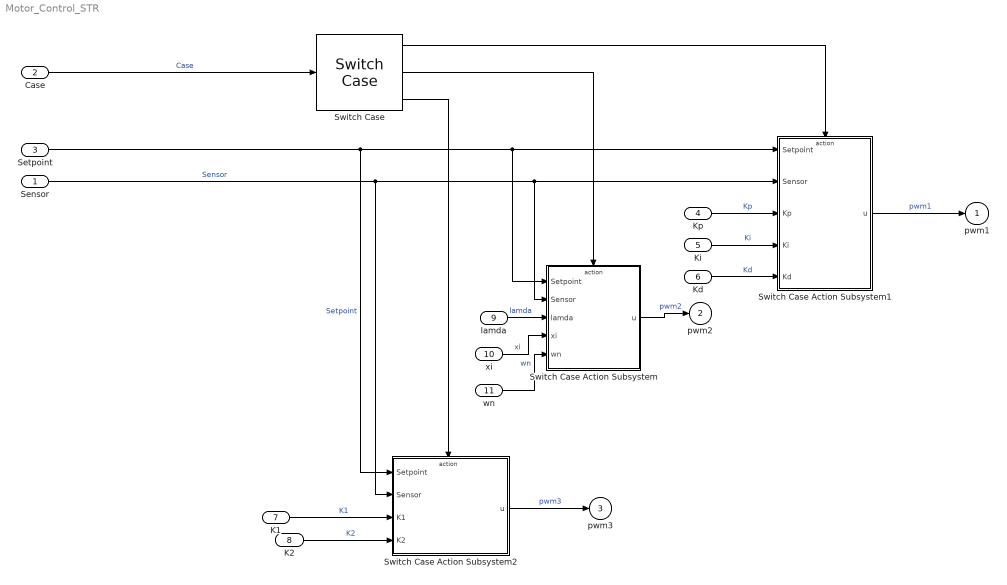
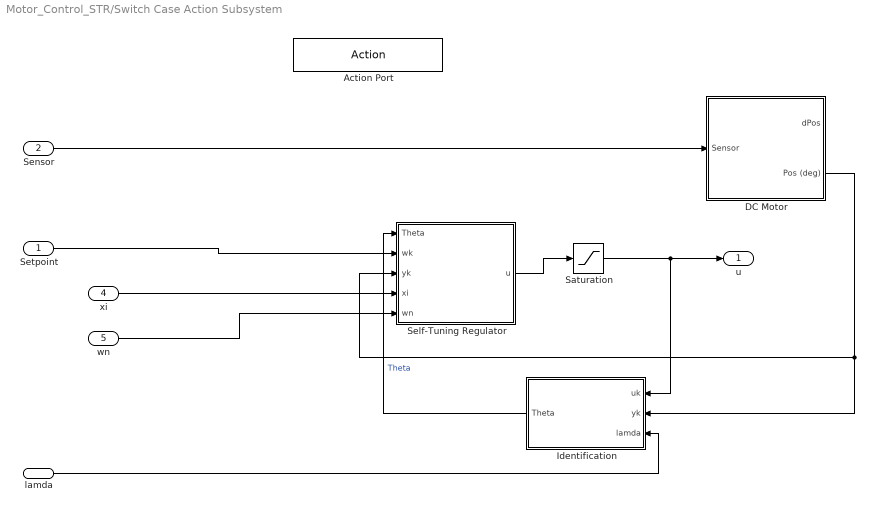
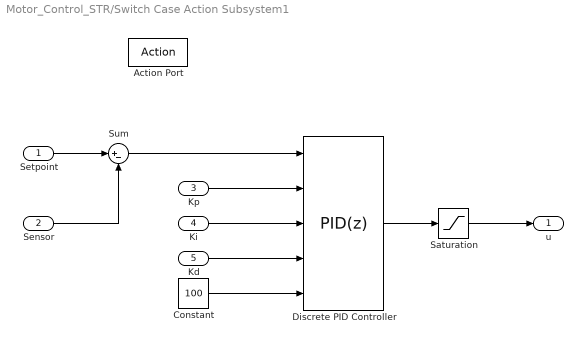
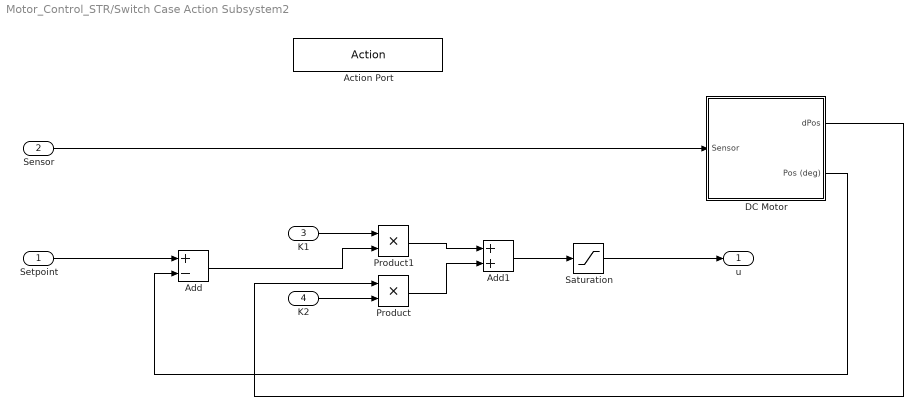
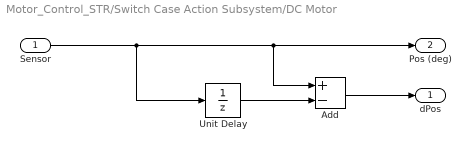
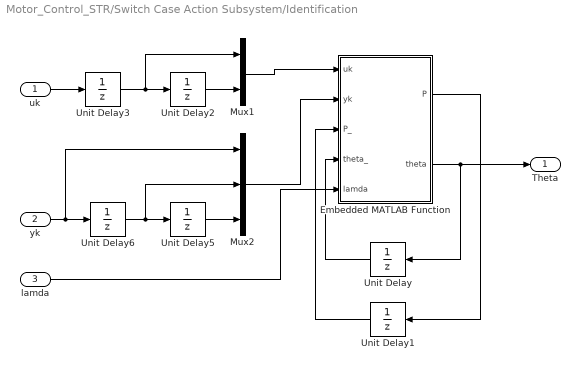
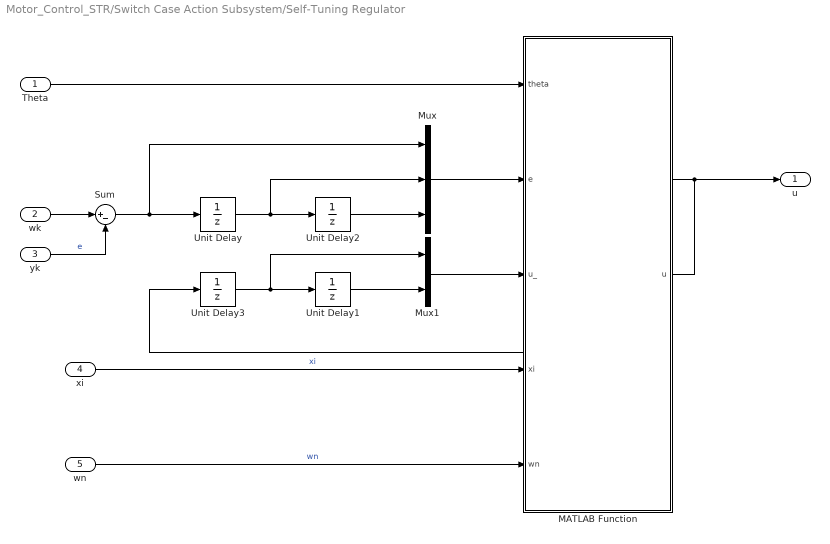
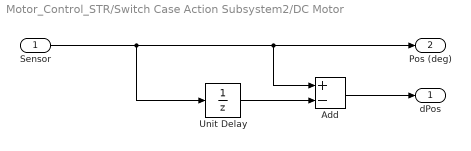
== matlab function Motor_Control_STR/Switch Case Action
Subsystem/Self-Tuning Regulator/MATLAB Function ==
function u = STR_pp1(theta,e,u_,xi,wn)
% Cai dat thoi gian lay mau va cuc mong muon
T0 = 0.005;
% xi = 0.99;
% wn = 4;
 
% Gan lai cho de su dung
a1   =  theta(1);
a2   =  theta(2);
b1   =  theta(3);
b2   =  theta(4);
 
% Sinh vien viet bo sung doan code phan dieu khien
 
if( xi<1)
    d1 = -2*exp(-xi*wn*T0)*cos(wn*T0*sqrt(1-xi^2));
else
    d1 = -2*exp(-xi*wn*T0)*cosh(wn*T0*sqrt(xi^2-1));
end
 
d2 = exp(-2*xi*wn*T0);
 
r1 = (b1+b2)*(a1*b1*b2-a2*b1^2-b2^2);
s1 = a2*((b1+b2)*(a1*b2-a2*b1)+b2*(b1*d2-b2*d1-b2));
q2 = s1/r1;
gamma = q2*b2/a2;
q1 = (a2/b2)-q2*(b1/b2-a1/a2+1);
q0 = (d1+1-a1-gamma)/b1;
 
%control law
u = q0*e(1) + q1*e(2) + q2*e(3) + (1-gamma)*u_(1) + gamma*u_(2);

== matlab function Motor_Control_STR/Switch Case Action
Subsystem/Identification/Embedded
MATLAB Function ==
function [P,theta] = Uocluong(uk,yk,P_,theta_,lamda)
%lamda = 0.99;
PHI = [-yk(2); -yk(3); uk(1); uk(2)];
e = yk(1) - PHI'*theta_;
L = P_*PHI / (lamda + PHI'*P_*PHI);
P = 1/lamda*(P_ - P_*PHI*PHI'*P_ /(lamda + PHI'*P_*PHI));
theta = theta_ + L*e;

/*
 * File: Motor_Control_STR.c
 *
 * Code generated for Simulink model 'Motor_Control_STR'.
 *
 * Model version                  : 12.25
 * Simulink Coder version         : 9.9 (R2023a) 19-Nov-2022
 * C/C++ source code generated on : Sat Dec 21 08:24:32 2024
 *
 * Target selection: ert.tlc
 * Embedded hardware selection: Intel->x86-64 (Windows64)
 * Code generation objectives: Unspecified
 * Validation result: Not run
 */

#include "Motor_Control_STR.h"
#include <math.h>
#include "rt_nonfinite.h"
#include "rtwtypes.h"
#include <string.h>

/* Exported block signals */
real_T Sensor;                         /* '<Root>/Sensor' */
real_T Case;                           /* '<Root>/Case' */
real_T Setpoint;                       /* '<Root>/Setpoint' */
real_T Kp;                             /* '<Root>/Kp' */
real_T Ki;                             /* '<Root>/Ki' */
real_T Kd;                             /* '<Root>/Kd' */
real_T K1;                             /* '<Root>/K1' */
real_T K2;                             /* '<Root>/K2' */
real_T lamda;                          /* '<Root>/lamda' */
real_T xi;                             /* '<Root>/xi' */
real_T wn;                             /* '<Root>/wn' */
real_T pwm3;                           /* '<S3>/Saturation' */
real_T pwm2;                           /* '<S1>/Saturation' */
real_T pwm1;                           /* '<S2>/Saturation' */

/* Block signals (default storage) */
B_Motor_Control_STR_T Motor_Control_STR_B;

/* Block states (default storage) */
DW_Motor_Control_STR_T Motor_Control_STR_DW;

/* Real-time model */
static RT_MODEL_Motor_Control_STR_T Motor_Control_STR_M_;
RT_MODEL_Motor_Control_STR_T *const Motor_Control_STR_M = &Motor_Control_STR_M_;

/* Model step function */
void Motor_Control_STR_step(void)
{
  real_T Theta_tmp_0[16];
  real_T tmp[16];
  real_T PHI[4];
  real_T Theta_tmp[4];
  real_T PHI_0;
  real_T Theta_tmp_1;
  real_T a;
  real_T b_gamma;
  real_T d1;
  real_T q2;
  real_T rtb_NProdOut;
  real_T rtb_Sum;
  real_T rtb_Sum_o;
  real_T rtb_UnitDelay3_d;
  real_T rtb_UnitDelay_n;
  int32_T PHI_tmp;
  int32_T i;
  int32_T tmp_0;
  int32_T tmp_1;

  /* SwitchCase: '<Root>/Switch Case' incorporates:
   *  Inport: '<Root>/Case'
   */
  PHI_0 = trunc(Case);
  if (rtIsNaN(PHI_0) || rtIsInf(PHI_0)) {
    PHI_0 = 0.0;
  } else {
    PHI_0 = fmod(PHI_0, 4.294967296E+9);
  }

  switch (PHI_0 < 0.0 ? -(int32_T)(uint32_T)-PHI_0 : (int32_T)(uint32_T)PHI_0) {
   case 1:
    /* Outputs for IfAction SubSystem: '<Root>/Switch Case Action Subsystem1' incorporates:
     *  ActionPort: '<S2>/Action Port'
     */
    /* Sum: '<S2>/Sum' incorporates:
     *  Inport: '<Root>/Sensor'
     *  Inport: '<Root>/Setpoint'
     */
    rtb_Sum_o = Setpoint - Sensor;

    /* Product: '<S44>/NProd Out' incorporates:
     *  Constant: '<S2>/Constant'
     *  DiscreteIntegrator: '<S36>/Filter'
     *  Inport: '<Root>/Kd'
     *  Product: '<S35>/DProd Out'
     *  Sum: '<S36>/SumD'
     */
    rtb_NProdOut = (rtb_Sum_o * Kd - Motor_Control_STR_DW.Filter_DSTATE) * 100.0;

    /* Sum: '<S50>/Sum' incorporates:
     *  DiscreteIntegrator: '<S41>/Integrator'
     *  Inport: '<Root>/Kp'
     *  Product: '<S46>/PProd Out'
     */
    rtb_Sum = (rtb_Sum_o * Kp + Motor_Control_STR_DW.Integrator_DSTATE) +
      rtb_NProdOut;

    /* Saturate: '<S2>/Saturation' */
    if (rtb_Sum > 100.0) {
      /* Saturate: '<S2>/Saturation' */
      pwm1 = 100.0;
    } else if (rtb_Sum < -100.0) {
      /* Saturate: '<S2>/Saturation' */
      pwm1 = -100.0;
    } else {
      /* Saturate: '<S2>/Saturation' */
      pwm1 = rtb_Sum;
    }

    /* End of Saturate: '<S2>/Saturation' */

    /* Update for DiscreteIntegrator: '<S36>/Filter' */
    Motor_Control_STR_DW.Filter_DSTATE += 0.005 * rtb_NProdOut;

    /* Update for DiscreteIntegrator: '<S41>/Integrator' incorporates:
     *  Inport: '<Root>/Ki'
     *  Product: '<S38>/IProd Out'
     */
    Motor_Control_STR_DW.Integrator_DSTATE += rtb_Sum_o * Ki * 0.005;

    /* End of Outputs for SubSystem: '<Root>/Switch Case Action Subsystem1' */
    break;

   case 2:
    /* Outputs for IfAction SubSystem: '<Root>/Switch Case Action Subsystem' incorporates:
     *  ActionPort: '<S1>/Action Port'
     */
    /* UnitDelay: '<S5>/Unit Delay3' */
    rtb_Sum_o = pwm2;

    /* UnitDelay: '<S5>/Unit Delay6' */
    rtb_NProdOut = Motor_Control_STR_DW.UnitDelay6_DSTATE;

    /* MATLAB Function: '<S5>/Embedded MATLAB Function' incorporates:
     *  Inport: '<Root>/Sensor'
     *  Inport: '<Root>/lamda'
     *  UnitDelay: '<S5>/Unit Delay'
     *  UnitDelay: '<S5>/Unit Delay1'
     *  UnitDelay: '<S5>/Unit Delay2'
     *  UnitDelay: '<S5>/Unit Delay3'
     *  UnitDelay: '<S5>/Unit Delay5'
     *  UnitDelay: '<S5>/Unit Delay6'
     */
    PHI[0] = -Motor_Control_STR_DW.UnitDelay6_DSTATE;
    PHI[1] = -Motor_Control_STR_DW.UnitDelay5_DSTATE;
    PHI[2] = pwm2;
    PHI[3] = Motor_Control_STR_DW.UnitDelay2_DSTATE;
    rtb_Sum = Sensor - (((-Motor_Control_STR_DW.UnitDelay6_DSTATE *
                          Motor_Control_STR_DW.UnitDelay_DSTATE_j[0] +
                          -Motor_Control_STR_DW.UnitDelay5_DSTATE *
                          Motor_Control_STR_DW.UnitDelay_DSTATE_j[1]) + pwm2 *
                         Motor_Control_STR_DW.UnitDelay_DSTATE_j[2]) +
                        Motor_Control_STR_DW.UnitDelay2_DSTATE *
                        Motor_Control_STR_DW.UnitDelay_DSTATE_j[3]);
    b_gamma = 0.0;
    for (i = 0; i < 4; i++) {
      PHI_tmp = i << 2;
      b_gamma += (((Motor_Control_STR_DW.UnitDelay1_DSTATE[PHI_tmp + 1] *
                    -Motor_Control_STR_DW.UnitDelay5_DSTATE +
                    Motor_Control_STR_DW.UnitDelay1_DSTATE[PHI_tmp] *
                    -Motor_Control_STR_DW.UnitDelay6_DSTATE) +
                   Motor_Control_STR_DW.UnitDelay1_DSTATE[PHI_tmp + 2] * pwm2) +
                  Motor_Control_STR_DW.UnitDelay1_DSTATE[PHI_tmp + 3] *
                  Motor_Control_STR_DW.UnitDelay2_DSTATE) * PHI[i];
    }

    PHI_0 = 0.0;
    a = 1.0 / lamda;
    for (i = 0; i < 4; i++) {
      q2 = ((Motor_Control_STR_DW.UnitDelay1_DSTATE[i + 4] *
             -Motor_Control_STR_DW.UnitDelay5_DSTATE +
             Motor_Control_STR_DW.UnitDelay1_DSTATE[i] *
             -Motor_Control_STR_DW.UnitDelay6_DSTATE) +
            Motor_Control_STR_DW.UnitDelay1_DSTATE[i + 8] * pwm2) +
        Motor_Control_STR_DW.UnitDelay1_DSTATE[i + 12] *
        Motor_Control_STR_DW.UnitDelay2_DSTATE;
      Theta_tmp[i] = q2;
      PHI_tmp = i << 2;
      PHI_0 += (((Motor_Control_STR_DW.UnitDelay1_DSTATE[PHI_tmp + 1] *
                  -Motor_Control_STR_DW.UnitDelay5_DSTATE +
                  Motor_Control_STR_DW.UnitDelay1_DSTATE[PHI_tmp] *
                  -Motor_Control_STR_DW.UnitDelay6_DSTATE) +
                 Motor_Control_STR_DW.UnitDelay1_DSTATE[PHI_tmp + 2] * pwm2) +
                Motor_Control_STR_DW.UnitDelay1_DSTATE[PHI_tmp + 3] *
                Motor_Control_STR_DW.UnitDelay2_DSTATE) * PHI[i];
      Motor_Control_STR_B.Theta[i] = q2 / (lamda + b_gamma) * rtb_Sum +
        Motor_Control_STR_DW.UnitDelay_DSTATE_j[i];
    }

    /* Sum: '<S6>/Sum' incorporates:
     *  Inport: '<Root>/Sensor'
     *  Inport: '<Root>/Setpoint'
     */
    rtb_Sum = Setpoint - Sensor;

    /* UnitDelay: '<S6>/Unit Delay' */
    rtb_UnitDelay_n = Motor_Control_STR_DW.UnitDelay_DSTATE_f;

    /* UnitDelay: '<S6>/Unit Delay3' */
    rtb_UnitDelay3_d = Motor_Control_STR_DW.UnitDelay3_DSTATE_d;

    /* MATLAB Function: '<S6>/MATLAB Function' incorporates:
     *  Inport: '<Root>/wn'
     *  Inport: '<Root>/xi'
     *  SignalConversion generated from: '<S8>/ SFunction '
     *  UnitDelay: '<S6>/Unit Delay'
     *  UnitDelay: '<S6>/Unit Delay1'
     *  UnitDelay: '<S6>/Unit Delay2'
     *  UnitDelay: '<S6>/Unit Delay3'
     */
    if (xi < 1.0) {
      d1 = exp(-xi * wn * 0.005) * -2.0 * cos(sqrt(1.0 - xi * xi) * (wn * 0.005));
    } else {
      d1 = exp(-xi * wn * 0.005) * -2.0 * cosh(sqrt(xi * xi - 1.0) * (wn * 0.005));
    }

    q2 = Motor_Control_STR_B.Theta[2] + Motor_Control_STR_B.Theta[3];
    q2 = (((exp(-2.0 * xi * wn * 0.005) * Motor_Control_STR_B.Theta[2] -
            Motor_Control_STR_B.Theta[3] * d1) - Motor_Control_STR_B.Theta[3]) *
          Motor_Control_STR_B.Theta[3] + (Motor_Control_STR_B.Theta[0] *
           Motor_Control_STR_B.Theta[3] - Motor_Control_STR_B.Theta[1] *
           Motor_Control_STR_B.Theta[2]) * q2) * Motor_Control_STR_B.Theta[1] /
      (((Motor_Control_STR_B.Theta[0] * Motor_Control_STR_B.Theta[2] *
         Motor_Control_STR_B.Theta[3] - Motor_Control_STR_B.Theta[2] *
         Motor_Control_STR_B.Theta[2] * Motor_Control_STR_B.Theta[1]) -
        Motor_Control_STR_B.Theta[3] * Motor_Control_STR_B.Theta[3]) * q2);
    b_gamma = q2 * Motor_Control_STR_B.Theta[3] / Motor_Control_STR_B.Theta[1];
    d1 = ((((Motor_Control_STR_B.Theta[1] / Motor_Control_STR_B.Theta[3] -
             ((Motor_Control_STR_B.Theta[2] / Motor_Control_STR_B.Theta[3] -
               Motor_Control_STR_B.Theta[0] / Motor_Control_STR_B.Theta[1]) +
              1.0) * q2) * Motor_Control_STR_DW.UnitDelay_DSTATE_f + (((d1 + 1.0)
              - Motor_Control_STR_B.Theta[0]) - b_gamma) /
            Motor_Control_STR_B.Theta[2] * rtb_Sum) + q2 *
           Motor_Control_STR_DW.UnitDelay2_DSTATE_m) + (1.0 - b_gamma) *
          Motor_Control_STR_DW.UnitDelay3_DSTATE_d) + b_gamma *
      Motor_Control_STR_DW.UnitDelay1_DSTATE_n;

    /* End of MATLAB Function: '<S6>/MATLAB Function' */

    /* Saturate: '<S1>/Saturation' */
    if (d1 > 100.0) {
      /* Saturate: '<S1>/Saturation' */
      pwm2 = 100.0;
    } else if (d1 < -100.0) {
      /* Saturate: '<S1>/Saturation' */
      pwm2 = -100.0;
    } else {
      /* Saturate: '<S1>/Saturation' */
      pwm2 = d1;
    }

    /* End of Saturate: '<S1>/Saturation' */

    /* Update for UnitDelay: '<S5>/Unit Delay2' */
    Motor_Control_STR_DW.UnitDelay2_DSTATE = rtb_Sum_o;

    /* Update for UnitDelay: '<S5>/Unit Delay6' incorporates:
     *  Inport: '<Root>/Sensor'
     */
    Motor_Control_STR_DW.UnitDelay6_DSTATE = Sensor;

    /* Update for UnitDelay: '<S5>/Unit Delay5' */
    Motor_Control_STR_DW.UnitDelay5_DSTATE = rtb_NProdOut;

    /* MATLAB Function: '<S5>/Embedded MATLAB Function' incorporates:
     *  Inport: '<Root>/lamda'
     *  UnitDelay: '<S5>/Unit Delay1'
     */
    q2 = Theta_tmp[0];
    rtb_Sum_o = Theta_tmp[1];
    rtb_NProdOut = Theta_tmp[2];
    Theta_tmp_1 = Theta_tmp[3];
    for (i = 0; i < 4; i++) {
      b_gamma = PHI[i];
      PHI_tmp = i << 2;
      Theta_tmp_0[PHI_tmp] = q2 * b_gamma;
      Theta_tmp_0[PHI_tmp + 1] = rtb_Sum_o * b_gamma;
      Theta_tmp_0[PHI_tmp + 2] = rtb_NProdOut * b_gamma;
      Theta_tmp_0[PHI_tmp + 3] = Theta_tmp_1 * b_gamma;
    }

    PHI_0 += lamda;
    for (i = 0; i < 4; i++) {
      q2 = Theta_tmp_0[i + 4];
      rtb_Sum_o = Theta_tmp_0[i];
      rtb_NProdOut = Theta_tmp_0[i + 8];
      Theta_tmp_1 = Theta_tmp_0[i + 12];
      for (PHI_tmp = 0; PHI_tmp < 4; PHI_tmp++) {
        tmp_0 = PHI_tmp << 2;
        tmp_1 = tmp_0 + i;
        tmp[tmp_1] = Motor_Control_STR_DW.UnitDelay1_DSTATE[tmp_1] -
          (((Motor_Control_STR_DW.UnitDelay1_DSTATE[tmp_0 + 1] * q2 +
             Motor_Control_STR_DW.UnitDelay1_DSTATE[tmp_0] * rtb_Sum_o) +
            Motor_Control_STR_DW.UnitDelay1_DSTATE[tmp_0 + 2] * rtb_NProdOut) +
           Motor_Control_STR_DW.UnitDelay1_DSTATE[tmp_0 + 3] * Theta_tmp_1) /
          PHI_0;
      }
    }

    /* Update for UnitDelay: '<S5>/Unit Delay1' incorporates:
     *  MATLAB Function: '<S5>/Embedded MATLAB Function'
     */
    for (i = 0; i < 16; i++) {
      Motor_Control_STR_DW.UnitDelay1_DSTATE[i] = a * tmp[i];
    }

    /* End of Update for UnitDelay: '<S5>/Unit Delay1' */

    /* Update for UnitDelay: '<S5>/Unit Delay' */
    Motor_Control_STR_DW.UnitDelay_DSTATE_j[0] = Motor_Control_STR_B.Theta[0];
    Motor_Control_STR_DW.UnitDelay_DSTATE_j[1] = Motor_Control_STR_B.Theta[1];
    Motor_Control_STR_DW.UnitDelay_DSTATE_j[2] = Motor_Control_STR_B.Theta[2];
    Motor_Control_STR_DW.UnitDelay_DSTATE_j[3] = Motor_Control_STR_B.Theta[3];

    /* Update for UnitDelay: '<S6>/Unit Delay' */
    Motor_Control_STR_DW.UnitDelay_DSTATE_f = rtb_Sum;

    /* Update for UnitDelay: '<S6>/Unit Delay2' */
    Motor_Control_STR_DW.UnitDelay2_DSTATE_m = rtb_UnitDelay_n;

    /* Update for UnitDelay: '<S6>/Unit Delay3' */
    Motor_Control_STR_DW.UnitDelay3_DSTATE_d = d1;

    /* Update for UnitDelay: '<S6>/Unit Delay1' */
    Motor_Control_STR_DW.UnitDelay1_DSTATE_n = rtb_UnitDelay3_d;

    /* End of Outputs for SubSystem: '<Root>/Switch Case Action Subsystem' */
    break;

   case 3:
    /* Outputs for IfAction SubSystem: '<Root>/Switch Case Action Subsystem2' incorporates:
     *  ActionPort: '<S3>/Action Port'
     */
    /* Sum: '<S3>/Add1' incorporates:
     *  Inport: '<Root>/K1'
     *  Inport: '<Root>/K2'
     *  Inport: '<Root>/Sensor'
     *  Inport: '<Root>/Setpoint'
     *  Product: '<S3>/Product'
     *  Product: '<S3>/Product1'
     *  Sum: '<S3>/Add'
     *  Sum: '<S58>/Add'
     *  UnitDelay: '<S58>/Unit Delay'
     */
    rtb_Sum = (Setpoint - Sensor) * K1 + (Sensor -
      Motor_Control_STR_DW.UnitDelay_DSTATE) * K2;

    /* Saturate: '<S3>/Saturation' */
    if (rtb_Sum > 100.0) {
      /* Saturate: '<S3>/Saturation' */
      pwm3 = 100.0;
    } else if (rtb_Sum < -100.0) {
      /* Saturate: '<S3>/Saturation' */
      pwm3 = -100.0;
    } else {
      /* Saturate: '<S3>/Saturation' */
      pwm3 = rtb_Sum;
    }

    /* End of Saturate: '<S3>/Saturation' */

    /* Update for UnitDelay: '<S58>/Unit Delay' incorporates:
     *  Inport: '<Root>/Sensor'
     */
    Motor_Control_STR_DW.UnitDelay_DSTATE = Sensor;

    /* End of Outputs for SubSystem: '<Root>/Switch Case Action Subsystem2' */
    break;
  }

  /* End of SwitchCase: '<Root>/Switch Case' */
}
